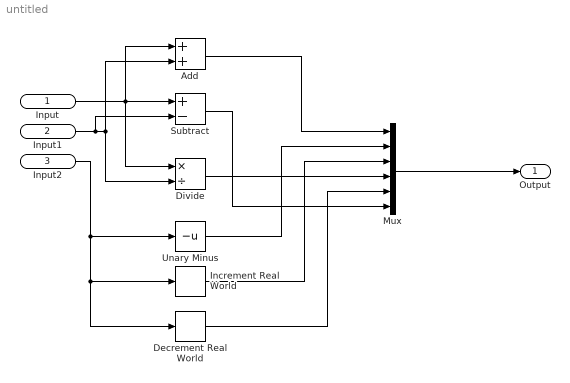
/*
 * File: untitled.c
 *
 * Code generated for Simulink model 'untitled'.
 *
 * Model version                  : 1.7
 * Simulink Coder version         : 9.5 (R2021a) 14-Nov-2020
 * C/C++ source code generated on : Fri Feb  9 23:23:18 2024
 *
 * Target selection: ert.tlc
 * Embedded hardware selection: Intel->x86-64 (Windows64)
 * Code generation objectives: Unspecified
 * Validation result: Not run
 */

#include "untitled.h"
#include "untitled_private.h"

/* External inputs (root inport signals with default storage) */
ExtU_untitled_T untitled_U;

/* External outputs (root outports fed by signals with default storage) */
ExtY_untitled_T untitled_Y;

/* Real-time model */
static RT_MODEL_untitled_T untitled_M_;
RT_MODEL_untitled_T *const untitled_M = &untitled_M_;

/* Model step function */
void untitled_step(void)
{
  /* Outport: '<Root>/Output' incorporates:
   *  Constant: '<S1>/FixPt Constant'
   *  Constant: '<S2>/FixPt Constant'
   *  Inport: '<Root>/Input'
   *  Inport: '<Root>/Input1'
   *  Inport: '<Root>/Input2'
   *  Product: '<Root>/Divide'
   *  Sum: '<Root>/Add'
   *  Sum: '<Root>/Subtract'
   *  Sum: '<S1>/FixPt Sum1'
   *  Sum: '<S2>/FixPt Sum1'
   *  UnaryMinus: '<Root>/Unary Minus'
   */
  untitled_Y.Output[0] = untitled_U.Input + untitled_U.Input1;
  untitled_Y.Output[1] = -untitled_U.Input2;
  untitled_Y.Output[2] = untitled_U.Input2 + 1.0;
  untitled_Y.Output[3] = untitled_U.Input / untitled_U.Input1;
  untitled_Y.Output[4] = untitled_U.Input2 - 1.0;
  untitled_Y.Output[5] = untitled_U.Input - untitled_U.Input1;
}
